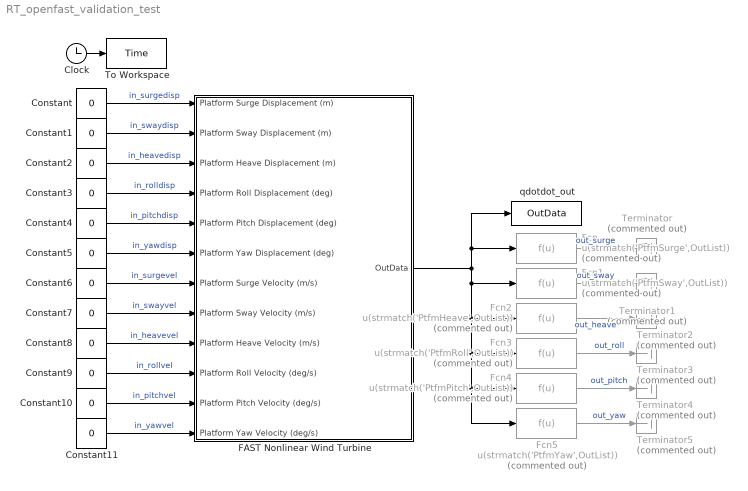
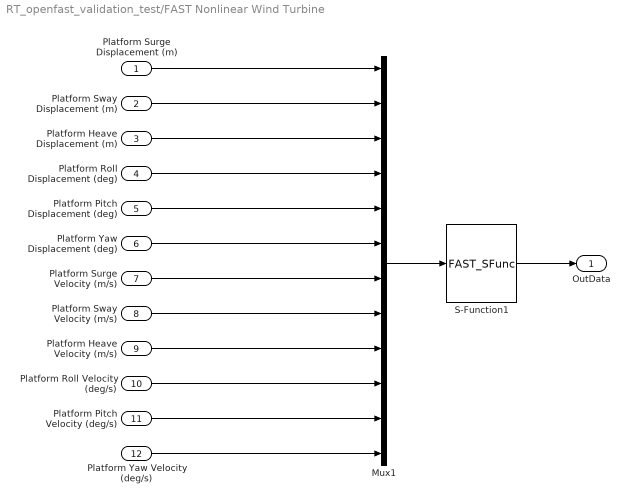
/*
 * RT_openfast_validation_test.cpp
 *
 * Academic License - for use in teaching, academic research, and meeting
 * course requirements at degree granting institutions only.  Not for
 * government, commercial, or other organizational use.
 *
 * Code generation for model "RT_openfast_validation_test".
 *
 * Model version              : 24.1
 * Simulink Coder version : 9.8 (R2022b) 13-May-2022
 * C++ source code generated on : Thu Nov 17 16:01:25 2022
 *
 * Target selection: slrealtime.tlc
 * Note: GRT includes extra infrastructure and instrumentation for prototyping
 * Embedded hardware selection: Intel->x86-64 (Linux 64)
 * Code generation objectives: Unspecified
 * Validation result: Not run
 */

#include "RT_openfast_validation_test.h"
#include "RT_openfast_validation_test_cal.h"
#include "RT_openfast_validation_test_private.h"
#include <cstring>

extern "C"
{

#include "rt_nonfinite.h"

}

/* Block signals (default storage) */
B_RT_openfast_validation_test_T RT_openfast_validation_test_B;

/* Block states (default storage) */
DW_RT_openfast_validation_test_T RT_openfast_validation_test_DW;

/* Real-time model */
RT_MODEL_RT_openfast_validation_test_T RT_openfast_validation_test_M_ =
  RT_MODEL_RT_openfast_validation_test_T();
RT_MODEL_RT_openfast_validation_test_T *const RT_openfast_validation_test_M =
  &RT_openfast_validation_test_M_;

/* Model step function */
void RT_openfast_validation_test_step(void)
{
  /* Clock: '<Root>/Clock' */
  RT_openfast_validation_test_B.Clock = RT_openfast_validation_test_M->Timing.t
    [0];

  /* S-Function (FAST_SFunc): '<S1>/S-Function1' */

  /* Level2 S-Function Block: '<S1>/S-Function1' (FAST_SFunc) */
  {
    SimStruct *rts = RT_openfast_validation_test_M->childSfunctions[0];
    sfcnOutputs(rts,0);
  }

  /* Constant: '<Root>/Constant' */
  RT_openfast_validation_test_B.in_surgedisp =
    RT_openfast_validation_test_cal->Constant_Value;

  /* Constant: '<Root>/Constant1' */
  RT_openfast_validation_test_B.in_swaydisp =
    RT_openfast_validation_test_cal->Constant1_Value;

  /* Constant: '<Root>/Constant10' */
  RT_openfast_validation_test_B.in_pitchvel =
    RT_openfast_validation_test_cal->Constant10_Value;

  /* Constant: '<Root>/Constant11' */
  RT_openfast_validation_test_B.in_yawvel =
    RT_openfast_validation_test_cal->Constant11_Value;

  /* Constant: '<Root>/Constant2' */
  RT_openfast_validation_test_B.in_heavedisp =
    RT_openfast_validation_test_cal->Constant2_Value;

  /* Constant: '<Root>/Constant3' */
  RT_openfast_validation_test_B.in_rolldisp =
    RT_openfast_validation_test_cal->Constant3_Value;

  /* Constant: '<Root>/Constant4' */
  RT_openfast_validation_test_B.in_pitchdisp =
    RT_openfast_validation_test_cal->Constant4_Value;

  /* Constant: '<Root>/Constant5' */
  RT_openfast_validation_test_B.in_yawdisp =
    RT_openfast_validation_test_cal->Constant5_Value;

  /* Constant: '<Root>/Constant6' */
  RT_openfast_validation_test_B.in_surgevel =
    RT_openfast_validation_test_cal->Constant6_Value;

  /* Constant: '<Root>/Constant7' */
  RT_openfast_validation_test_B.in_swayvel =
    RT_openfast_validation_test_cal->Constant7_Value;

  /* Constant: '<Root>/Constant8' */
  RT_openfast_validation_test_B.in_heavevel =
    RT_openfast_validation_test_cal->Constant8_Value;

  /* Constant: '<Root>/Constant9' */
  RT_openfast_validation_test_B.in_rollvel =
    RT_openfast_validation_test_cal->Constant9_Value;

  /* Update for S-Function (FAST_SFunc): '<S1>/S-Function1' */
  /* Level2 S-Function Block: '<S1>/S-Function1' (FAST_SFunc) */
  {
    SimStruct *rts = RT_openfast_validation_test_M->childSfunctions[0];
    sfcnUpdate(rts,0);
    if (ssGetErrorStatus(rts) != (NULL))
      return;
  }

  /* Update absolute time for base rate */
  /* The "clockTick0" counts the number of times the code of this task has
   * been executed. The absolute time is the multiplication of "clockTick0"
   * and "Timing.stepSize0". Size of "clockTick0" ensures timer will not
   * overflow during the application lifespan selected.
   * Timer of this task consists of two 32 bit unsigned integers.
   * The two integers represent the low bits Timing.clockTick0 and the high bits
   * Timing.clockTickH0. When the low bit overflows to 0, the high bits increment.
   */
  if (!(++RT_openfast_validation_test_M->Timing.clockTick0)) {
    ++RT_openfast_validation_test_M->Timing.clockTickH0;
  }

  RT_openfast_validation_test_M->Timing.t[0] =
    RT_openfast_validation_test_M->Timing.clockTick0 *
    RT_openfast_validation_test_M->Timing.stepSize0 +
    RT_openfast_validation_test_M->Timing.clockTickH0 *
    RT_openfast_validation_test_M->Timing.stepSize0 * 4294967296.0;

  {
    /* Update absolute timer for sample time: [0.01s, 0.0s] */
    /* The "clockTick1" counts the number of times the code of this task has
     * been executed. The absolute time is the multiplication of "clockTick1"
     * and "Timing.stepSize1". Size of "clockTick1" ensures timer will not
     * overflow during the application lifespan selected.
     * Timer of this task consists of two 32 bit unsigned integers.
     * The two integers represent the low bits Timing.clockTick1 and the high bits
     * Timing.clockTickH1. When the low bit overflows to 0, the high bits increment.
     */
    if (!(++RT_openfast_validation_test_M->Timing.clockTick1)) {
      ++RT_openfast_validation_test_M->Timing.clockTickH1;
    }

    RT_openfast_validation_test_M->Timing.t[1] =
      RT_openfast_validation_test_M->Timing.clockTick1 *
      RT_openfast_validation_test_M->Timing.stepSize1 +
      RT_openfast_validation_test_M->Timing.clockTickH1 *
      RT_openfast_validation_test_M->Timing.stepSize1 * 4294967296.0;
  }
}
